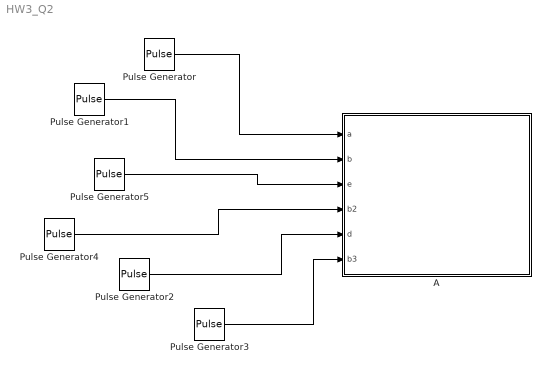
== stateflow chart HW3_Q2/A ==
  state B [parallel]
    state State_1
    state State_2
    (default) -> State_1
    State_1 -> State_2 : [c]
    State_2 -> State_1 : [(b || b2 || b3) && in(C.D.D2)]
  state C [parallel]
    state D
      state D1
      state D2
      (default) -> D1
      D1 -> D2 : [e]{c = 0;}
      D2 -> D2 : [e]
    state G
    G -> D : [a]{c = 1;}
    (default) -> G
    D -> G : [d]
  data: a input; e input; d input; b2 input; b input; c local =0; b3 input

/*
 * File: HW3_Q2.c
 *
 * Code generated for Simulink model 'HW3_Q2'.
 *
 * Model version                  : 1.0
 * Simulink Coder version         : 9.7 (R2022a) 13-Nov-2021
 * C/C++ source code generated on : Fri Apr 21 23:21:16 2023
 *
 * Target selection: ert.tlc
 * Embedded hardware selection: Intel->x86-64 (Windows64)
 * Code generation objectives: Unspecified
 * Validation result: Not run
 */

#include "HW3_Q2.h"
#include "rtwtypes.h"

/* Named constants for Chart: '<Root>/A' */
#define HW3_Q2_IN_D                    ((uint8_T)1U)
#define HW3_Q2_IN_D1                   ((uint8_T)1U)
#define HW3_Q2_IN_D2                   ((uint8_T)2U)
#define HW3_Q2_IN_G                    ((uint8_T)2U)
#define HW3_Q2_IN_NO_ACTIVE_CHILD      ((uint8_T)0U)
#define HW3_Q2_IN_State_1              ((uint8_T)1U)
#define HW3_Q2_IN_State_2              ((uint8_T)2U)

/* Block states (default storage) */
DW_HW3_Q2_T HW3_Q2_DW;

/* Real-time model */
static RT_MODEL_HW3_Q2_T HW3_Q2_M_;
RT_MODEL_HW3_Q2_T *const HW3_Q2_M = &HW3_Q2_M_;

/* Model step function */
void HW3_Q2_step(void)
{
  int32_T rtb_PulseGenerator;
  int32_T rtb_PulseGenerator1;
  int32_T rtb_PulseGenerator2;
  int32_T rtb_PulseGenerator3;
  int32_T rtb_PulseGenerator4;
  int32_T rtb_PulseGenerator5;

  /* DiscretePulseGenerator: '<Root>/Pulse Generator' */
  rtb_PulseGenerator = ((HW3_Q2_DW.clockTickCounter < 1) &&
                        (HW3_Q2_DW.clockTickCounter >= 0));
  if (HW3_Q2_DW.clockTickCounter >= 99) {
    HW3_Q2_DW.clockTickCounter = 0;
  } else {
    HW3_Q2_DW.clockTickCounter++;
  }

  /* End of DiscretePulseGenerator: '<Root>/Pulse Generator' */

  /* DiscretePulseGenerator: '<Root>/Pulse Generator5' */
  rtb_PulseGenerator5 = ((HW3_Q2_DW.clockTickCounter_g < 1) &&
    (HW3_Q2_DW.clockTickCounter_g >= 0));
  if (HW3_Q2_DW.clockTickCounter_g >= 99) {
    HW3_Q2_DW.clockTickCounter_g = 0;
  } else {
    HW3_Q2_DW.clockTickCounter_g++;
  }

  /* End of DiscretePulseGenerator: '<Root>/Pulse Generator5' */

  /* DiscretePulseGenerator: '<Root>/Pulse Generator2' */
  rtb_PulseGenerator2 = ((HW3_Q2_DW.clockTickCounter_i < 1) &&
    (HW3_Q2_DW.clockTickCounter_i >= 0));
  if (HW3_Q2_DW.clockTickCounter_i >= 99) {
    HW3_Q2_DW.clockTickCounter_i = 0;
  } else {
    HW3_Q2_DW.clockTickCounter_i++;
  }

  /* End of DiscretePulseGenerator: '<Root>/Pulse Generator2' */

  /* DiscretePulseGenerator: '<Root>/Pulse Generator4' */
  rtb_PulseGenerator4 = ((HW3_Q2_DW.clockTickCounter_f < 1) &&
    (HW3_Q2_DW.clockTickCounter_f >= 0));
  if (HW3_Q2_DW.clockTickCounter_f >= 99) {
    HW3_Q2_DW.clockTickCounter_f = 0;
  } else {
    HW3_Q2_DW.clockTickCounter_f++;
  }

  /* End of DiscretePulseGenerator: '<Root>/Pulse Generator4' */

  /* DiscretePulseGenerator: '<Root>/Pulse Generator1' */
  rtb_PulseGenerator1 = ((HW3_Q2_DW.clockTickCounter_a < 1) &&
    (HW3_Q2_DW.clockTickCounter_a >= 0));
  if (HW3_Q2_DW.clockTickCounter_a >= 99) {
    HW3_Q2_DW.clockTickCounter_a = 0;
  } else {
    HW3_Q2_DW.clockTickCounter_a++;
  }

  /* End of DiscretePulseGenerator: '<Root>/Pulse Generator1' */

  /* DiscretePulseGenerator: '<Root>/Pulse Generator3' */
  rtb_PulseGenerator3 = ((HW3_Q2_DW.clockTickCounter_c < 1) &&
    (HW3_Q2_DW.clockTickCounter_c >= 0));
  if (HW3_Q2_DW.clockTickCounter_c >= 99) {
    HW3_Q2_DW.clockTickCounter_c = 0;
  } else {
    HW3_Q2_DW.clockTickCounter_c++;
  }

  /* End of DiscretePulseGenerator: '<Root>/Pulse Generator3' */

  /* Chart: '<Root>/A' */
  if (HW3_Q2_DW.is_active_c3_HW3_Q2 == 0U) {
    HW3_Q2_DW.is_active_c3_HW3_Q2 = 1U;
    HW3_Q2_DW.is_B = HW3_Q2_IN_State_1;
    HW3_Q2_DW.is_C = HW3_Q2_IN_G;
  } else {
    if (HW3_Q2_DW.is_B == HW3_Q2_IN_State_1) {
      if (HW3_Q2_DW.c != 0.0) {
        HW3_Q2_DW.is_B = HW3_Q2_IN_State_2;
      }

      /* case IN_State_2: */
    } else if (((rtb_PulseGenerator1 != 0) || (rtb_PulseGenerator4 != 0) ||
                (rtb_PulseGenerator3 != 0)) && (HW3_Q2_DW.is_D == HW3_Q2_IN_D2))
    {
      HW3_Q2_DW.is_B = HW3_Q2_IN_State_1;
    }

    if (HW3_Q2_DW.is_C == HW3_Q2_IN_D) {
      if (rtb_PulseGenerator2 != 0) {
        HW3_Q2_DW.is_D = HW3_Q2_IN_NO_ACTIVE_CHILD;
        HW3_Q2_DW.is_C = HW3_Q2_IN_G;
      } else if (HW3_Q2_DW.is_D == HW3_Q2_IN_D1) {
        if (rtb_PulseGenerator5 != 0) {
          HW3_Q2_DW.c = 0.0;
          HW3_Q2_DW.is_D = HW3_Q2_IN_D2;
        }

        /* case IN_D2: */
      } else if (rtb_PulseGenerator5 != 0) {
        HW3_Q2_DW.is_D = HW3_Q2_IN_D2;
      }

      /* case IN_G: */
    } else if (rtb_PulseGenerator != 0) {
      HW3_Q2_DW.c = 1.0;
      HW3_Q2_DW.is_C = HW3_Q2_IN_D;
      HW3_Q2_DW.is_D = HW3_Q2_IN_D1;
    }
  }

  /* End of Chart: '<Root>/A' */
}
